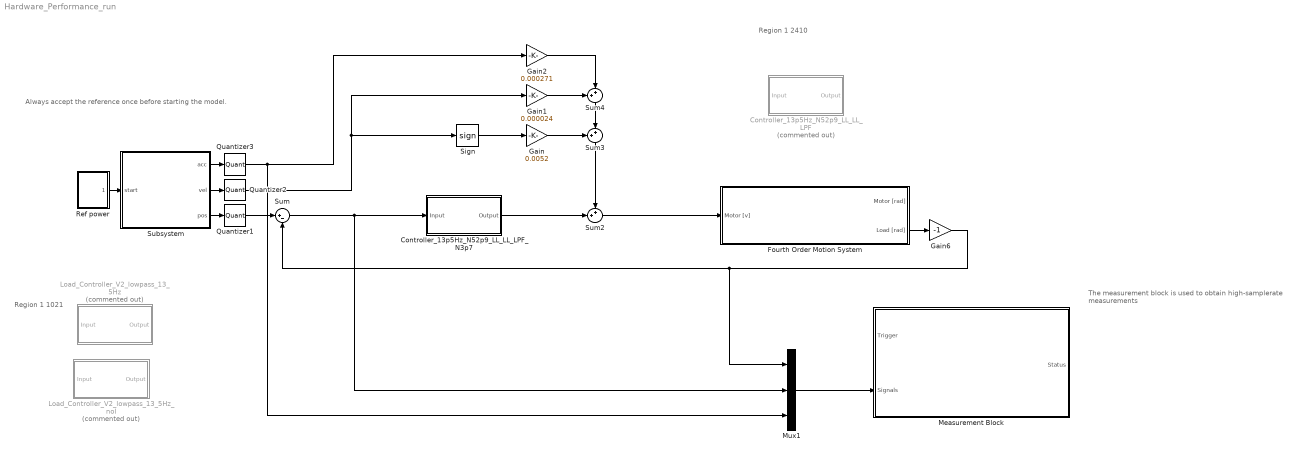
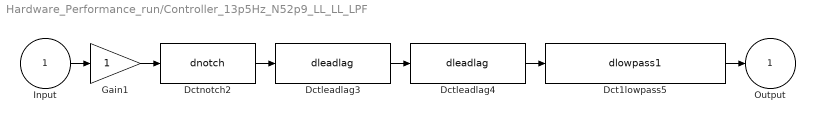
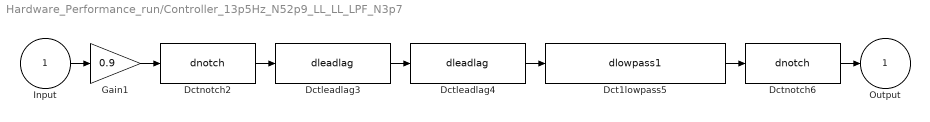
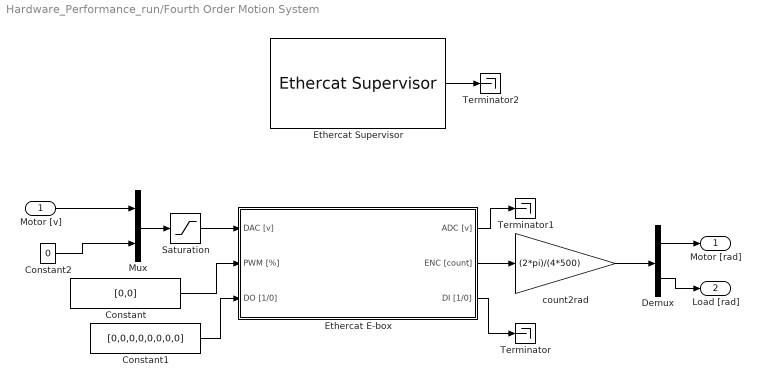
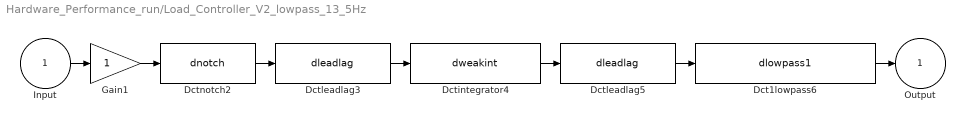
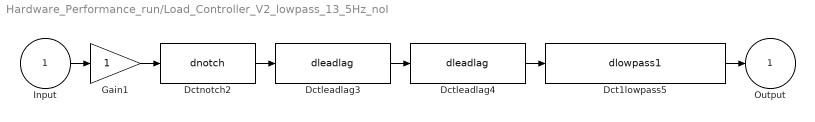
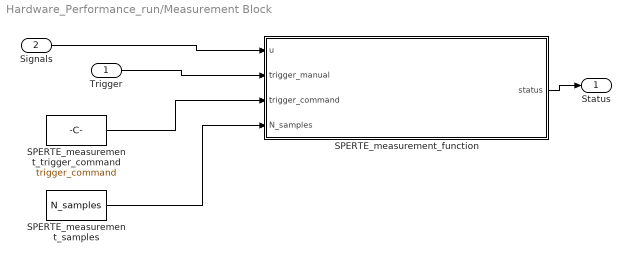
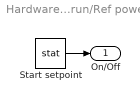
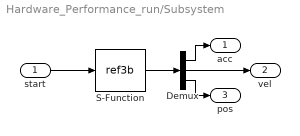
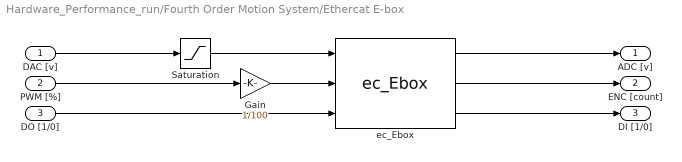
== matlab function Hardware_Performance_run/Measurement Block/SPERTE_measurement_function ==
function status = perform_measurement(u, trigger_manual, trigger_command, triggertype, N_samples)

%% Persistent variables
persistent fileID NF busy NS

% Init parameters
if isempty(NF)
    NF = int16(0);
end
if isempty(NS)
    NS = uint32(0);
end
if isempty(fileID)
    fileID = 0;
end
if isempty(busy)
    busy = uint8(0);
end

%% Check the triggers
if ( (triggertype == 0 && trigger_manual == 1) || (triggertype == 1 && trigger_command == 1) || (triggertype == 2 && (trigger_command == 1 || trigger_manual == 1) ) )
    if busy == 1
        % We are already busy, nothing to do
    else
        % We should start a new one
        fileID = fopen(sprintf('measurement_%d.bin',NF),'w');  
        NF = NF + 1;
        busy = uint8(1);
        NS = uint32(0);
    end
end

% We have started a measurement
if busy == 1
    if NS < N_samples 
        % Here we write the sample, in single precision float
        fwrite(fileID,u,'single');
        NS = NS + uint32(1);
    else
       % We have N samples already, we are done
       fclose(fileID);
       busy = uint8(0);
       NS = uint32(0);
    end
      
end
    % Output state
    status = uint8(busy);
end

/*
 * Hardware_Performance_run.c
 *
 * Academic License - for use in teaching, academic research, and meeting
 * course requirements at degree granting institutions only.  Not for
 * government, commercial, or other organizational use.
 *
 * Code generation for model "Hardware_Performance_run".
 *
 * Model version              : 14.25
 * Simulink Coder version : 25.1 (R2025a) 21-Nov-2024
 * C source code generated on : Fri Oct 24 14:08:12 2025
 *
 * Target selection: ert.tlc
 * Note: GRT includes extra infrastructure and instrumentation for prototyping
 * Embedded hardware selection: ARM Compatible->ARM Cortex-A (32-bit)
 * Code generation objectives: Unspecified
 * Validation result: Not run
 */

#include "Hardware_Performance_run.h"
#include "Hardware_Performance_run_types.h"
#include "rtwtypes.h"
#include <string.h>
#include <stddef.h>
#include "Hardware_Performance_run_private.h"
#include "rt_nonfinite.h"
#include <stdio.h>
#include <stdlib.h>
#include <math.h>

/* Named constants for MATLAB Function: '<S3>/SPERTE_measurement_function' */
#define Hardware_Performance_CALL_EVENT (-1)

/* Block signals (default storage) */
B_Hardware_Performance_run_T Hardware_Performance_run_B;

/* Block states (default storage) */
DW_Hardware_Performance_run_T Hardware_Performance_run_DW;

/* Real-time model */
static RT_MODEL_Hardware_Performance_run_T Hardware_Performance_run_M_;
RT_MODEL_Hardware_Performance_run_T *const Hardware_Performance_run_M =
  &Hardware_Performance_run_M_;

/* Forward declaration for local functions */
static void Hardware_Perform_emxInit_char_T(emxArray_char_T_Hardware_Perf_T
  **pEmxArray, int32_T numDimensions);
static void Hardwa_emxEnsureCapacity_char_T(emxArray_char_T_Hardware_Perf_T
  *emxArray, int32_T oldNumel);
static void Hardware_Perform_emxFree_char_T(emxArray_char_T_Hardware_Perf_T
  **pEmxArray);
static int8_T Hardware_Performance_r_filedata(void);
static int8_T Hardware_Performance_run_cfopen(const
  emxArray_char_T_Hardware_Perf_T *cfilename, const char_T *cpermission);
static int32_T Hardware_Performance_ru_cfclose(real_T fid);

/*
 * Writes out MAT-file header.  Returns success or failure.
 * Returns:
 * 0 - success
 * 1 - failure
 */
int_T rt_WriteMat4FileHeader(FILE *fp, int32_T m, int32_T n, const char *name)
{
  typedef enum { ELITTLE_ENDIAN, EBIG_ENDIAN } ByteOrder;

  int16_T one = 1;
  ByteOrder byteOrder = (*((int8_T *)&one)==1) ? ELITTLE_ENDIAN : EBIG_ENDIAN;
  int32_T type = (byteOrder == ELITTLE_ENDIAN) ? 0: 1000;
  int32_T imagf = 0;
  int32_T name_len = (int32_T)strlen(name) + 1;
  if ((fwrite(&type, sizeof(int32_T), 1, fp) == 0) ||
      (fwrite(&m, sizeof(int32_T), 1, fp) == 0) ||
      (fwrite(&n, sizeof(int32_T), 1, fp) == 0) ||
      (fwrite(&imagf, sizeof(int32_T), 1, fp) == 0) ||
      (fwrite(&name_len, sizeof(int32_T), 1, fp) == 0) ||
      (fwrite(name, sizeof(char), name_len, fp) == 0)) {
    return(1);
  } else {
    return(0);
  }
}                                      /* end rt_WriteMat4FileHeader */

real_T rt_roundd_snf(real_T u)
{
  real_T y;
  if (fabs(u) < 4.503599627370496E+15) {
    if (u >= 0.5) {
      y = floor(u + 0.5);
    } else if (u > -0.5) {
      y = u * 0.0;
    } else {
      y = ceil(u - 0.5);
    }
  } else {
    y = u;
  }

  return y;
}

static void Hardware_Perform_emxInit_char_T(emxArray_char_T_Hardware_Perf_T
  **pEmxArray, int32_T numDimensions)
{
  emxArray_char_T_Hardware_Perf_T *emxArray;
  int32_T i;
  *pEmxArray = (emxArray_char_T_Hardware_Perf_T *)malloc(sizeof
    (emxArray_char_T_Hardware_Perf_T));
  emxArray = *pEmxArray;
  emxArray->data = (char_T *)NULL;
  emxArray->numDimensions = numDimensions;
  emxArray->size = (int32_T *)malloc(sizeof(int32_T) * (uint32_T)numDimensions);
  emxArray->allocatedSize = 0;
  emxArray->canFreeData = true;
  for (i = 0; i < numDimensions; i++) {
    emxArray->size[i] = 0;
  }
}

static void Hardwa_emxEnsureCapacity_char_T(emxArray_char_T_Hardware_Perf_T
  *emxArray, int32_T oldNumel)
{
  int32_T i;
  int32_T newNumel;
  void *newData;
  if (oldNumel < 0) {
    oldNumel = 0;
  }

  newNumel = 1;
  for (i = 0; i < emxArray->numDimensions; i++) {
    newNumel *= emxArray->size[i];
  }

  if (newNumel > emxArray->allocatedSize) {
    i = emxArray->allocatedSize;
    if (i < 16) {
      i = 16;
    }

    while (i < newNumel) {
      if (i > 1073741823) {
        i = MAX_int32_T;
      } else {
        i <<= 1;
      }
    }

    newData = malloc((uint32_T)i * sizeof(char_T));
    if (emxArray->data != NULL) {
      memcpy(newData, emxArray->data, sizeof(char_T) * (uint32_T)oldNumel);
      if (emxArray->canFreeData) {
        free(emxArray->data);
      }
    }

    emxArray->data = (char_T *)newData;
    emxArray->allocatedSize = i;
    emxArray->canFreeData = true;
  }
}

static void Hardware_Perform_emxFree_char_T(emxArray_char_T_Hardware_Perf_T
  **pEmxArray)
{
  if (*pEmxArray != (emxArray_char_T_Hardware_Perf_T *)NULL) {
    if (((*pEmxArray)->data != (char_T *)NULL) && (*pEmxArray)->canFreeData) {
      free((*pEmxArray)->data);
    }

    free((*pEmxArray)->size);
    free(*pEmxArray);
    *pEmxArray = (emxArray_char_T_Hardware_Perf_T *)NULL;
  }
}

/* Function for MATLAB Function: '<S3>/SPERTE_measurement_function' */
static int8_T Hardware_Performance_r_filedata(void)
{
  int32_T k;
  int8_T f;
  boolean_T exitg1;
  f = 0;
  k = 1;
  exitg1 = false;
  while ((!exitg1) && (k - 1 < 20)) {
    if (Hardware_Performance_run_DW.eml_openfiles[(int8_T)k - 1] == NULL) {
      f = (int8_T)k;
      exitg1 = true;
    } else {
      k++;
    }
  }

  return f;
}

/* Function for MATLAB Function: '<S3>/SPERTE_measurement_function' */
static int8_T Hardware_Performance_run_cfopen(const
  emxArray_char_T_Hardware_Perf_T *cfilename, const char_T *cpermission)
{
  FILE *filestar;
  emxArray_char_T_Hardware_Perf_T *ccfilename;
  int32_T loop_ub;
  int8_T fileid;
  int8_T j;
  fileid = -1;
  j = Hardware_Performance_r_filedata();
  if (j >= 1) {
    Hardware_Perform_emxInit_char_T(&ccfilename, 2);
    loop_ub = ccfilename->size[0] * ccfilename->size[1];
    ccfilename->size[0] = 1;
    ccfilename->size[1] = cfilename->size[1] + 1;
    Hardwa_emxEnsureCapacity_char_T(ccfilename, loop_ub);
    loop_ub = cfilename->size[1];
    if (loop_ub - 1 >= 0) {
      memcpy(&ccfilename->data[0], &cfilename->data[0], (uint32_T)loop_ub *
             sizeof(char_T));
    }

    ccfilename->data[cfilename->size[1]] = '\x00';
    filestar = fopen(&ccfilename->data[0], cpermission);
    Hardware_Perform_emxFree_char_T(&ccfilename);
    if (filestar != NULL) {
      Hardware_Performance_run_DW.eml_openfiles[j - 1] = filestar;
      Hardware_Performance_run_DW.eml_autoflush[j - 1] = true;
      loop_ub = j + 2;
      if (j + 2 > 127) {
        loop_ub = 127;
      }

      fileid = (int8_T)loop_ub;
    }
  }

  return fileid;
}

/* Function for MATLAB Function: '<S3>/SPERTE_measurement_function' */
static int32_T Hardware_Performance_ru_cfclose(real_T fid)
{
  FILE *f;
  int32_T cst;
  int32_T st;
  int8_T b_fileid;
  int8_T fileid;
  st = -1;
  fileid = (int8_T)fid;
  if (((int8_T)fid < 0) || (fid != (int8_T)fid)) {
    fileid = -1;
  }

  b_fileid = fileid;
  if (fileid < 0) {
    b_fileid = -1;
  }

  if (b_fileid >= 3) {
    f = Hardware_Performance_run_DW.eml_openfiles[b_fileid - 3];
  } else if (b_fileid == 0) {
    f = stdin;
  } else if (b_fileid == 1) {
    f = stdout;
  } else if (b_fileid == 2) {
    f = stderr;
  } else {
    f = NULL;
  }

  if ((f != NULL) && (fileid >= 3)) {
    cst = fclose(f);
    if (cst == 0) {
      st = 0;
      Hardware_Performance_run_DW.eml_openfiles[fileid - 3] = NULL;
      Hardware_Performance_run_DW.eml_autoflush[fileid - 3] = true;
    }
  }

  return st;
}

/* Model step function */
void Hardware_Performance_run_step(void)
{
  FILE *f;
  size_t bytesOutSizet;
  emxArray_char_T_Hardware_Perf_T *str;
  emxArray_char_T_Hardware_Perf_T *str_0;
  real_T rtb_Gain6;
  real_T rtb_Quantizer3;
  real_T rtb_Sum;
  real_T rtb_Sum2;
  real_T tmp;
  int32_T nbytes;
  int32_T tmp_0;
  real32_T xout[3];
  int8_T b_fileid;
  boolean_T autoflush;

  /* Constant: '<S4>/Start setpoint' */
  Hardware_Performance_run_B.Startsetpoint =
    Hardware_Performance_run_P.Refpower_stat;

  /* S-Function (ref3b): '<S5>/S-Function' */

  /* Level2 S-Function Block: '<S5>/S-Function' (ref3b) */
  {
    SimStruct *rts = Hardware_Performance_run_M->childSfunctions[0];
    sfcnOutputs(rts,0);
  }

  /* S-Function (getTiming): '<S7>/S-Function1' */

  /* Level2 S-Function Block: '<S7>/S-Function1' (getTiming) */
  {
    SimStruct *rts = Hardware_Performance_run_M->childSfunctions[1];
    sfcnOutputs(rts,0);
  }

  /* ToFile: '<S7>/To File ' */
  {
    if (!(++Hardware_Performance_run_DW.ToFile_IWORK.Decimation % 1) &&
        (Hardware_Performance_run_DW.ToFile_IWORK.Count * (1 + 1)) + 1 <
        100000000 ) {
      FILE *fp = (FILE *) Hardware_Performance_run_DW.ToFile_PWORK.FilePtr;
      if (fp != (NULL)) {
        real_T u[1 + 1];
        Hardware_Performance_run_DW.ToFile_IWORK.Decimation = 0;
        u[0] = Hardware_Performance_run_M->Timing.t[1];
        u[1] = Hardware_Performance_run_B.SFunction1;
        if (fwrite(u, sizeof(real_T), 1 + 1, fp) != 1 + 1) {
          rtmSetErrorStatus(Hardware_Performance_run_M,
                            "Error writing to MAT-file Ts_meas.mat");
          return;
        }

        if (((++Hardware_Performance_run_DW.ToFile_IWORK.Count) * (1 + 1))+1 >=
            100000000) {
          (void)fprintf(stdout,
                        "*** The ToFile block will stop logging data before\n"
                        "    the simulation has ended, because it has reached\n"
                        "    the maximum number of elements (100000000)\n"
                        "    allowed in MAT-file Ts_meas.mat.\n");
        }
      }
    }
  }

  /* S-Function (ec_Supervisor): '<S7>/S-Function' */

  /* Level2 S-Function Block: '<S7>/S-Function' (ec_Supervisor) */
  {
    SimStruct *rts = Hardware_Performance_run_M->childSfunctions[2];
    sfcnOutputs(rts,0);
  }

  /* S-Function (ec_Ebox): '<S6>/ec_Ebox' */

  /* Level2 S-Function Block: '<S6>/ec_Ebox' (ec_Ebox) */
  {
    SimStruct *rts = Hardware_Performance_run_M->childSfunctions[3];
    sfcnOutputs(rts,0);
  }

  /* Gain: '<S6>/Gain' incorporates:
   *  Constant: '<S2>/Constant'
   */
  Hardware_Performance_run_B.Gain[0] = Hardware_Performance_run_P.Gain_Gain *
    Hardware_Performance_run_P.Constant_Value[0];
  Hardware_Performance_run_B.Gain[1] = Hardware_Performance_run_P.Gain_Gain *
    Hardware_Performance_run_P.Constant_Value[1];

  /* Gain: '<Root>/Gain6' incorporates:
   *  Gain: '<S2>/count2rad'
   */
  rtb_Gain6 = Hardware_Performance_run_P.count2rad_Gain *
    Hardware_Performance_run_B.ec_Ebox_o2[1] *
    Hardware_Performance_run_P.Gain6_Gain;

  /* Sum: '<Root>/Sum' incorporates:
   *  Quantizer: '<Root>/Quantizer1'
   */
  rtb_Sum = rt_roundd_snf(Hardware_Performance_run_B.SFunction[2] /
    Hardware_Performance_run_P.Quantizer1_Interval) *
    Hardware_Performance_run_P.Quantizer1_Interval - rtb_Gain6;

  /* Gain: '<S1>/Gain1' */
  Hardware_Performance_run_B.Gain1 = Hardware_Performance_run_P.Gain1_Gain *
    rtb_Sum;

  /* S-Function (dnotch): '<S1>/Dctnotch2' */

  /* Level2 S-Function Block: '<S1>/Dctnotch2' (dnotch) */
  {
    SimStruct *rts = Hardware_Performance_run_M->childSfunctions[4];
    sfcnOutputs(rts,0);
  }

  /* S-Function (dleadlag): '<S1>/Dctleadlag3' */

  /* Level2 S-Function Block: '<S1>/Dctleadlag3' (dleadlag) */
  {
    SimStruct *rts = Hardware_Performance_run_M->childSfunctions[5];
    sfcnOutputs(rts,0);
  }

  /* S-Function (dleadlag): '<S1>/Dctleadlag4' */

  /* Level2 S-Function Block: '<S1>/Dctleadlag4' (dleadlag) */
  {
    SimStruct *rts = Hardware_Performance_run_M->childSfunctions[6];
    sfcnOutputs(rts,0);
  }

  /* S-Function (dlowpass1): '<S1>/Dct1lowpass5' */

  /* Level2 S-Function Block: '<S1>/Dct1lowpass5' (dlowpass1) */
  {
    SimStruct *rts = Hardware_Performance_run_M->childSfunctions[7];
    sfcnOutputs(rts,0);
  }

  /* Quantizer: '<Root>/Quantizer2' */
  rtb_Sum2 = rt_roundd_snf(Hardware_Performance_run_B.SFunction[1] /
    Hardware_Performance_run_P.Quantizer2_Interval) *
    Hardware_Performance_run_P.Quantizer2_Interval;

  /* Quantizer: '<Root>/Quantizer3' */
  rtb_Quantizer3 = rt_roundd_snf(Hardware_Performance_run_B.SFunction[0] /
    Hardware_Performance_run_P.Quantizer3_Interval) *
    Hardware_Performance_run_P.Quantizer3_Interval;

  /* Signum: '<Root>/Sign' */
  if (rtIsNaN(rtb_Sum2)) {
    tmp = (rtNaN);
  } else if (rtb_Sum2 < 0.0) {
    tmp = -1.0;
  } else {
    tmp = (rtb_Sum2 > 0.0);
  }

  /* Sum: '<Root>/Sum2' incorporates:
   *  Gain: '<Root>/Gain'
   *  Gain: '<Root>/Gain1'
   *  Gain: '<Root>/Gain2'
   *  Signum: '<Root>/Sign'
   *  Sum: '<Root>/Sum3'
   *  Sum: '<Root>/Sum4'
   */
  rtb_Sum2 = ((Hardware_Performance_run_P.Gain1_Gain_j * rtb_Sum2 +
               Hardware_Performance_run_P.Gain2_Gain * rtb_Quantizer3) +
              Hardware_Performance_run_P.Gain_Gain_h * tmp) +
    Hardware_Performance_run_B.Dct1lowpass5;

  /* Saturate: '<S2>/Saturation' */
  if (rtb_Sum2 > Hardware_Performance_run_P.Saturation_UpperSat) {
    rtb_Sum2 = Hardware_Performance_run_P.Saturation_UpperSat;
  } else if (rtb_Sum2 < Hardware_Performance_run_P.Saturation_LowerSat) {
    rtb_Sum2 = Hardware_Performance_run_P.Saturation_LowerSat;
  }

  /* Saturate: '<S6>/Saturation' */
  if (rtb_Sum2 > Hardware_Performance_run_P.Saturation_UpperSat_d) {
    /* Saturate: '<S6>/Saturation' */
    Hardware_Performance_run_B.Saturation[0] =
      Hardware_Performance_run_P.Saturation_UpperSat_d;
  } else if (rtb_Sum2 < Hardware_Performance_run_P.Saturation_LowerSat_e) {
    /* Saturate: '<S6>/Saturation' */
    Hardware_Performance_run_B.Saturation[0] =
      Hardware_Performance_run_P.Saturation_LowerSat_e;
  } else {
    /* Saturate: '<S6>/Saturation' */
    Hardware_Performance_run_B.Saturation[0] = rtb_Sum2;
  }

  /* Saturate: '<S2>/Saturation' incorporates:
   *  Constant: '<S2>/Constant2'
   */
  if (Hardware_Performance_run_P.Constant2_Value >
      Hardware_Performance_run_P.Saturation_UpperSat) {
    rtb_Sum2 = Hardware_Performance_run_P.Saturation_UpperSat;
  } else if (Hardware_Performance_run_P.Constant2_Value <
             Hardware_Performance_run_P.Saturation_LowerSat) {
    rtb_Sum2 = Hardware_Performance_run_P.Saturation_LowerSat;
  } else {
    rtb_Sum2 = Hardware_Performance_run_P.Constant2_Value;
  }

  /* Saturate: '<S6>/Saturation' */
  if (rtb_Sum2 > Hardware_Performance_run_P.Saturation_UpperSat_d) {
    /* Saturate: '<S6>/Saturation' */
    Hardware_Performance_run_B.Saturation[1] =
      Hardware_Performance_run_P.Saturation_UpperSat_d;
  } else if (rtb_Sum2 < Hardware_Performance_run_P.Saturation_LowerSat_e) {
    /* Saturate: '<S6>/Saturation' */
    Hardware_Performance_run_B.Saturation[1] =
      Hardware_Performance_run_P.Saturation_LowerSat_e;
  } else {
    /* Saturate: '<S6>/Saturation' */
    Hardware_Performance_run_B.Saturation[1] = rtb_Sum2;
  }

  /* MATLAB Function: '<S3>/SPERTE_measurement_function' incorporates:
   *  Constant: '<S3>/SPERTE_measurement_samples'
   *  Constant: '<S3>/SPERTE_measurement_trigger_command'
   *  SignalConversion generated from: '<S8>/ SFunction '
   */
  Hardware_Performance_run_DW.sfEvent = Hardware_Performance_CALL_EVENT;
  if ((((Hardware_Performance_run_P.MeasurementBlock_triggertype == 1) &&
        (Hardware_Performance_run_P.MeasurementBlock_trigger_comman == 1)) ||
       ((Hardware_Performance_run_P.MeasurementBlock_triggertype == 2) &&
        (Hardware_Performance_run_P.MeasurementBlock_trigger_comman == 1))) &&
      (Hardware_Performance_run_DW.busy != 1)) {
    nbytes = (int32_T)snprintf(NULL, 0, "measurement_%d.bin",
      Hardware_Performance_run_DW.NF) + 1;
    Hardware_Perform_emxInit_char_T(&str, 2);
    tmp_0 = str->size[0] * str->size[1];
    str->size[0] = 1;
    str->size[1] = nbytes;
    Hardwa_emxEnsureCapacity_char_T(str, tmp_0);
    snprintf(&str->data[0], (size_t)nbytes, "measurement_%d.bin",
             Hardware_Performance_run_DW.NF);
    if (nbytes - 1 < 1) {
      nbytes = -1;
    } else {
      nbytes -= 2;
    }

    Hardware_Perform_emxInit_char_T(&str_0, 2);
    tmp_0 = str_0->size[0] * str_0->size[1];
    str_0->size[0] = 1;
    str_0->size[1] = nbytes + 1;
    Hardwa_emxEnsureCapacity_char_T(str_0, tmp_0);
    if (nbytes >= 0) {
      memcpy(&str_0->data[0], &str->data[0], (uint32_T)(nbytes + 1) * sizeof
             (char_T));
    }

    Hardware_Perform_emxFree_char_T(&str);
    b_fileid = Hardware_Performance_run_cfopen(str_0, "wb");
    Hardware_Perform_emxFree_char_T(&str_0);
    Hardware_Performance_run_DW.fileID = b_fileid;
    nbytes = Hardware_Performance_run_DW.NF + 1;
    if (Hardware_Performance_run_DW.NF + 1 > 32767) {
      nbytes = 32767;
    }

    Hardware_Performance_run_DW.NF = (int16_T)nbytes;
    Hardware_Performance_run_DW.busy = 1U;
    Hardware_Performance_run_DW.NS = 0U;
  }

  if (Hardware_Performance_run_DW.busy == 1) {
    if (Hardware_Performance_run_DW.NS <
        Hardware_Performance_run_P.MeasurementBlock_N_samples) {
      b_fileid = (int8_T)Hardware_Performance_run_DW.fileID;
      if (((int8_T)Hardware_Performance_run_DW.fileID < 0) ||
          (Hardware_Performance_run_DW.fileID != (int8_T)
           Hardware_Performance_run_DW.fileID)) {
        b_fileid = -1;
      }

      if (b_fileid >= 3) {
        autoflush = Hardware_Performance_run_DW.eml_autoflush[b_fileid - 3];
        f = Hardware_Performance_run_DW.eml_openfiles[b_fileid - 3];
      } else if (b_fileid == 0) {
        f = stdin;
        autoflush = true;
      } else if (b_fileid == 1) {
        f = stdout;
        autoflush = true;
      } else if (b_fileid == 2) {
        f = stderr;
        autoflush = true;
      } else {
        f = NULL;
        autoflush = true;
      }

      if (!(Hardware_Performance_run_DW.fileID != 0.0)) {
        f = NULL;
      }

      if (!(f == NULL)) {
        xout[0] = (real32_T)rtb_Gain6;
        xout[1] = (real32_T)rtb_Sum;
        xout[2] = (real32_T)rtb_Quantizer3;
        bytesOutSizet = fwrite(&xout[0], sizeof(real32_T), (size_t)3, f);
        if (((real_T)bytesOutSizet > 0.0) && autoflush) {
          fflush(f);
        }
      }

      Hardware_Performance_run_DW.NS++;
    } else {
      Hardware_Performance_ru_cfclose(Hardware_Performance_run_DW.fileID);
      Hardware_Performance_run_DW.busy = 0U;
      Hardware_Performance_run_DW.NS = 0U;
    }
  }

  /* End of MATLAB Function: '<S3>/SPERTE_measurement_function' */

  /* Constant: '<S2>/Constant1' */
  memcpy(&Hardware_Performance_run_B.Constant1[0],
         &Hardware_Performance_run_P.Constant1_Value[0], sizeof(real_T) << 3U);

  {                                    /* Sample time: [0.00025s, 0.0s] */
    extmodeErrorCode_T errorCode = EXTMODE_SUCCESS;
    extmodeSimulationTime_T extmodeTime = (extmodeSimulationTime_T)
      Hardware_Performance_run_M->Timing.t[1];

    /* Trigger External Mode event */
    errorCode = extmodeEvent(1, extmodeTime);
    if (errorCode != EXTMODE_SUCCESS) {
      /* Code to handle External Mode event errors
         may be added here */
    }
  }

  /* Update absolute time for base rate */
  /* The "clockTick0" counts the number of times the code of this task has
   * been executed. The absolute time is the multiplication of "clockTick0"
   * and "Timing.stepSize0". Size of "clockTick0" ensures timer will not
   * overflow during the application lifespan selected.
   * Timer of this task consists of two 32 bit unsigned integers.
   * The two integers represent the low bits Timing.clockTick0 and the high bits
   * Timing.clockTickH0. When the low bit overflows to 0, the high bits increment.
   */
  if (!(++Hardware_Performance_run_M->Timing.clockTick0)) {
    ++Hardware_Performance_run_M->Timing.clockTickH0;
  }

  Hardware_Performance_run_M->Timing.t[0] =
    Hardware_Performance_run_M->Timing.clockTick0 *
    Hardware_Performance_run_M->Timing.stepSize0 +
    Hardware_Performance_run_M->Timing.clockTickH0 *
    Hardware_Performance_run_M->Timing.stepSize0 * 4294967296.0;

  {
    /* Update absolute timer for sample time: [0.00025s, 0.0s] */
    /* The "clockTick1" counts the number of times the code of this task has
     * been executed. The absolute time is the multiplication of "clockTick1"
     * and "Timing.stepSize1". Size of "clockTick1" ensures timer will not
     * overflow during the application lifespan selected.
     * Timer of this task consists of two 32 bit unsigned integers.
     * The two integers represent the low bits Timing.clockTick1 and the high bits
     * Timing.clockTickH1. When the low bit overflows to 0, the high bits increment.
     */
    if (!(++Hardware_Performance_run_M->Timing.clockTick1)) {
      ++Hardware_Performance_run_M->Timing.clockTickH1;
    }

    Hardware_Performance_run_M->Timing.t[1] =
      Hardware_Performance_run_M->Timing.clockTick1 *
      Hardware_Performance_run_M->Timing.stepSize1 +
      Hardware_Performance_run_M->Timing.clockTickH1 *
      Hardware_Performance_run_M->Timing.stepSize1 * 4294967296.0;
  }
}
